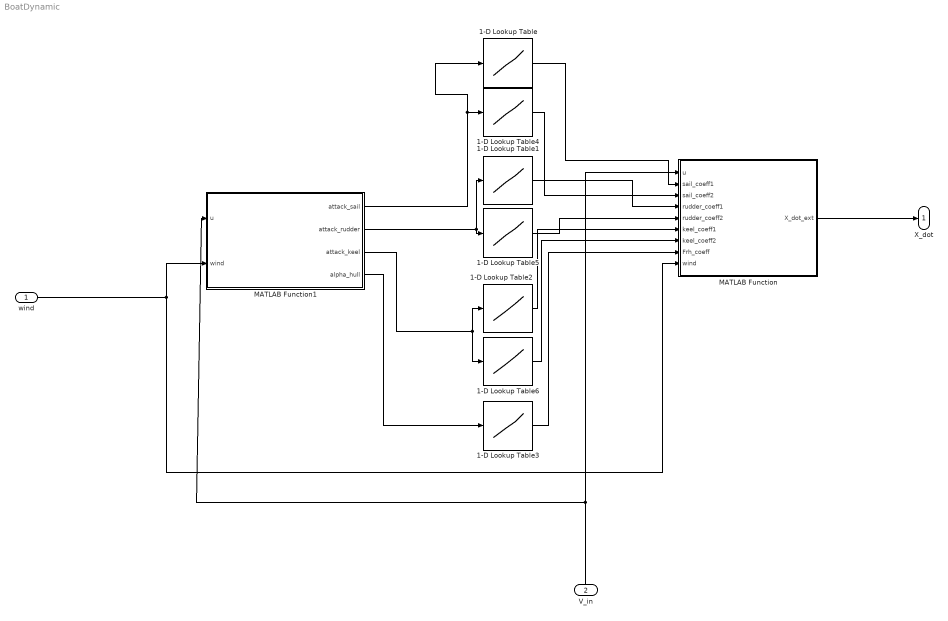
== matlab function BoatDynamic/MATLAB Function1 ==
% interpreted Matlab function "f.m" for the Simulink file "SailingYachtModel.slx"
% This function describes the dynamics of a 4DOF sailing yacht model
% and gives the derivative of the state X and the sail angle delta_s.
% The input vector V_in contains the system state and the control input vector. 
%
% For the model description, notations, equations and parameters,
% see Xiao and Jouffroy, "Modeling and nonlinear heading control of sailing
% yachts", IEEE Journal of Oceanic Engineering, vol. 39, no. 2., pp. 256-268, 2014.
% 
% Jerome Jouffroy, Jiaxi He and Lin Xiao, 2014.
% University of Southern Denmark.



function [attack_sail,attack_rudder,attack_keel,alpha_hull]=sailcoeff_attack(u,wind)
%#codegen

% use the system parameters
par = modeleBoat();

par.vt = wind(1);                           % the norm of wind velocity
par.alpha_w = wind(2);                      % the direction of wind (coming from the north, ie going south)


V_in = u;
% retrieve the system state from the field input vector "V_in"
x = V_in(5);
y = V_in(6);
phi = V_in(7);
psi = V_in(8);
u = V_in(9);
v = V_in(10);
p = V_in(11);
r = V_in(12);
nu = [ u ; v ; p ; r ];

% retrieve the input signals from the vector "V_in"
delta_r = V_in(1);
delta_sbar = V_in(2);
y_w = V_in(3);
u_s = V_in(4);


% evaluate the matrix M and C in the model
M_RB = [ par.m 0 0 0 ; 0 par.m 0 0 ; 0 0 par.Ixx -par.Ixz ; 0 0 -par.Ixz par.Izz];
C_RB = [0 -par.m*r 0 0 ; par.m*r 0 0 0 ; 0 0 0 0 ; 0 0 0 0];

M_A = [par.a11 0 0 0;0 par.a22 par.a24 par.a26;0 par.a24 par.a44 par.a46;0 par.a26 par.a46 par.a66];
C_A = [0  0 0 -par.a22*nu(2)-par.a24*nu(3)-par.a26*nu(4) ; 0 0 0 par.a11*nu(1) ; 0 0 0 0 ; par.a22*nu(2)+par.a24*nu(3)+par.a26*nu(4) -par.a11*nu(1) 0 0];

M = M_RB + M_A;

% calculate the tau vector, ie forces and moments generated from:
% the sail
v_t = [ par.vt*cos(par.alpha_w); par.vt*sin(par.alpha_w); 0 ];
v_tw = log(abs(par.z_s)*cos(phi)/par.h0)/log(par.h1/par.h0)*v_t;
R1 = [ cos(-psi) -sin(-psi) 0; sin(-psi) cos(-psi) 0; 0 0 1];
R2 = [ 1 0 0 ; 0 cos(-phi) -sin(-phi); 0 sin(-phi) cos(-phi)];
v_tb = R2*R1*v_tw; % wind expressed in the body frame
V_in = [ u ; v ; 0 ];
V_awb = v_tb - V_in - cross([p;0;r],[par.xs;par.ys;par.zs]);
V_awu = V_awb(1);
V_awv = V_awb(2);
alpha_aw = atan2(V_awv,-V_awu);

%% (sail luffing or not)
if alpha_aw-u_s>delta_sbar
    delta_s = delta_sbar;
elseif alpha_aw-u_s<-delta_sbar
    delta_s = -delta_sbar;
else
    delta_s = alpha_aw-u_s;
end
delta_s = delta_s + u_s;

alpha_as = alpha_aw - delta_s;

attack_sail = alpha_as;

% fit the input angle of attack into the interval [-pi,pi]
if attack_sail > pi
    attack_sail = mod(attack_sail+pi,2*pi) - pi;
else
    if attack_sail < -pi
        attack_sail = mod(attack_sail-pi,-2*pi) + pi;
    end
end

%% the rudder
v_aru = -u+r*par.yr;
v_arv = -v-r*par.xr + p*par.zr;
alpha_ar = atan2(v_arv,-v_aru);
alpha_a = alpha_ar-delta_r;

attack_rudder = alpha_a;

% fit the input angle of attack into the interval [-pi,pi]
if attack_rudder > pi
    attack_rudder = mod(attack_rudder+pi,2*pi) - pi;
else
    if attack_rudder < -pi
        attack_rudder = mod(attack_rudder-pi,-2*pi) + pi;
    end
end

%% the keel
v_aku = -u + r*par.yk;
v_akv = -v - r*par.xk+p*par.zk;
alpha_ak = atan2(v_akv,-v_aku);
alpha_e = alpha_ak;

attack_keel = alpha_e;

% fit the input angle of attack into the interval [-pi,pi]
if attack_keel > pi
    attack_keel = mod(attack_keel+pi,2*pi) - pi;
else
    if attack_keel < -pi
        attack_keel = mod(attack_keel-pi,-2*pi) + pi;
    end
end

%% from the hull
v_ahu = -u + r*par.yh;
v_ahv = (-v-r*par.xh + p*par.zh)/cos(phi);
v_ah = sqrt(v_aku^2+v_akv^2);
alpha_ah = atan2(v_ahv,-v_ahu);
alpha_hull = v_ah;

== matlab function BoatDynamic/MATLAB Function ==
% interpreted Matlab function "f.m" for the Simulink file "SailingYachtModel.slx"
% This function describes the dynamics of a 4DOF sailing yacht model
% and gives the derivative of the state X and the sail angle delta_s.
% The input vector V_in contains the system state and the control input vector. 
%
% For the model description, notations, equations and parameters,
% see Xiao and Jouffroy, "Modeling and nonlinear heading control of sailing
% yachts", IEEE Journal of Oceanic Engineering, vol. 39, no. 2., pp. 256-268, 2014.
% 
% Jerome Jouffroy, Jiaxi He and Lin Xiao, 2014.
% University of Southern Denmark.



function X_dot_ext  =fcn(u,sail_coeff1,sail_coeff2,rudder_coeff1,rudder_coeff2,keel_coeff1,keel_coeff2,Frh_coeff,wind)
%#codegen

% use the system parameters
par = modeleBoat();

par.vt = wind(1);                           % the norm of wind velocity
par.alpha_w = wind(2);                      % the direction of wind (coming from the north, ie going south)


V_in = u;
% retrieve the system state from the field input vector "V_in"
x = V_in(5);
y = V_in(6);
phi = V_in(7);
psi = V_in(8);
u = V_in(9);
v = V_in(10);
p = V_in(11);
r = V_in(12);
nu = [ u ; v ; p ; r ];

% retrieve the input signals from the vector "V_in"
delta_r = V_in(1);
delta_sbar = V_in(2);
y_w = V_in(3);
u_s = V_in(4);

% evaluate the matrix M and C in the model
M_RB = [ par.m 0 0 0 ; 0 par.m 0 0 ; 0 0 par.Ixx -par.Ixz ; 0 0 -par.Ixz par.Izz];
C_RB = [0 -par.m*r 0 0 ; par.m*r 0 0 0 ; 0 0 0 0 ; 0 0 0 0];

M_A = [par.a11 0 0 0;0 par.a22 par.a24 par.a26;0 par.a24 par.a44 par.a46;0 par.a26 par.a46 par.a66];
C_A = [0  0 0 -par.a22*nu(2)-par.a24*nu(3)-par.a26*nu(4) ; 0 0 0 par.a11*nu(1) ; 0 0 0 0 ; par.a22*nu(2)+par.a24*nu(3)+par.a26*nu(4) -par.a11*nu(1) 0 0];

M = M_RB + M_A;

% calculate the tau vector, ie forces and moments generated from:
% the sail
v_t = [ par.vt*cos(par.alpha_w); par.vt*sin(par.alpha_w); 0 ];
v_tw = log(abs(par.z_s)*cos(phi)/par.h0)/log(par.h1/par.h0)*v_t;
R1 = [ cos(-psi) -sin(-psi) 0; sin(-psi) cos(-psi) 0; 0 0 1];
R2 = [ 1 0 0 ; 0 cos(-phi) -sin(-phi); 0 sin(-phi) cos(-phi)];
v_tb = R2*R1*v_tw; % wind expressed in the body frame
V_in = [ u ; v ; 0 ];
V_awb = v_tb - V_in - cross([p;0;r],[par.xs;par.ys;par.zs]);
V_awu = V_awb(1);
V_awv = V_awb(2);
alpha_aw = atan2(V_awv,-V_awu);

% (sail luffing or not)
if alpha_aw-u_s>delta_sbar
    delta_s = delta_sbar;
elseif alpha_aw-u_s<-delta_sbar
    delta_s = -delta_sbar;
else
    delta_s = alpha_aw-u_s;
end
delta_s = delta_s + u_s;

alpha_as = alpha_aw - delta_s;

Cls = sail_coeff1;
Cds = sail_coeff2;

Ls = 0.5*par.rho_a*par.As*(V_awu^2+V_awv^2)*Cls;
Ds = 0.5*par.rho_a*par.As*(V_awu^2+V_awv^2)*Cds;

tau_sail = [Ls*sin(alpha_aw)-Ds*cos(alpha_aw); Ls*cos(alpha_aw)+Ds*sin(alpha_aw);-(Ls*cos(alpha_aw)+Ds*sin(alpha_aw))*par.zs; -(Ls*sin(alpha_aw)-Ds*cos(alpha_aw))*par.Xce*sin(delta_s)+(Ls*cos(alpha_aw)+Ds*sin(alpha_aw))*(par.Xm-par.Xce*cos(delta_s))];
Mzs = tau_sail(4);

% the rudder
v_aru = -u+r*par.yr;
v_arv = -v-r*par.xr + p*par.zr;
alpha_ar = atan2(v_arv,-v_aru);
alpha_a = alpha_ar-delta_r;

%[Clr,Cdr] = ruddercoef(alpha_a);
Clr = rudder_coeff1;
Cdr = rudder_coeff2;

Cdr = Cdr+Clr^2*par.Ar/(pi*2*par.zeta_r*par.d_r^2);

Lr = 0.5*par.rho_w*par.Ar*(v_aru^2+v_arv^2)*Clr;
Dr = 0.5*par.rho_w*par.Ar*(v_aru^2+v_arv^2)*Cdr;

tau_rudder = [Lr*sin(alpha_ar)-Dr*cos(alpha_ar); Lr*cos(alpha_ar)+Dr*sin(alpha_ar); -(Lr*cos(alpha_ar)+Dr*sin(alpha_ar))*par.zr; (Lr*cos(alpha_ar)+Dr*sin(alpha_ar))*par.xr];
Mzr = tau_rudder(4);

% the tau vector is finally given by:
tau = tau_sail + tau_rudder;

% calculate the damping forces and moments:
% from the keel
v_aku = -u + r*par.yk;
v_akv = -v - r*par.xk+p*par.zk;
alpha_ak = atan2(v_akv,-v_aku);
alpha_e = alpha_ak;

Clk = keel_coeff1;
Cdk = keel_coeff2;

Cdk = Cdk + Clk^2*par.Ak/(pi*2*par.zeta_k*par.d_k^2);

Lk = 0.5*par.rho_w*par.Ak*(v_aku^2+v_akv^2)*Clk;
Dk = 0.5*par.rho_w*par.Ak*(v_aku^2+v_akv^2)*Cdk;

D_keel = [ -Lk*sin(alpha_ak)+Dk*cos(alpha_ak); -Lk*cos(alpha_ak)-Dk*sin(alpha_ak); -(-Lk*cos(alpha_ak)-Dk*sin(alpha_ak))*par.zk; -(Lk*cos(alpha_ak)+Dk*sin(alpha_ak))*par.xk];

% from the hull
v_ahu = -u + r*par.yh;
v_ahv = (-v-r*par.xh + p*par.zh)/cos(phi);
v_ah = sqrt(v_aku^2+v_akv^2);
alpha_ah = atan2(v_ahv,-v_ahu);

Frh = Frh_coeff;

D_hull = [Frh*cos(alpha_ah);-Frh*sin(alpha_ah)*cos(phi); Frh*sin(alpha_ah)*cos(phi)*par.zh; -Frh*sin(alpha_ah)*cos(phi)*par.xh];

% from heel and yaw
% (compute first eta_dot and thereby phi_dot and psi_dot)
J = [cos(psi) -sin(psi)*cos(phi) 0 0; sin(psi) cos(psi)*cos(phi) 0 0; 0 0 1 0; 0 0 0 cos(phi)];
eta_dot = J*nu;
phi_dot = eta_dot(3);
psi_dot = eta_dot(4);

D_heelandyaw = [0;0;par.c*phi_dot*abs(phi_dot);par.d*psi_dot*abs(psi_dot)*cos(phi)]; 

% compute total damping vector D
D = D_keel + D_hull + D_heelandyaw;

% righting moment plus internal moving mass system (ie transversal weight)
phi_deg = phi*180/pi;
M_xw = -y_w*par.w_c*par.y_bm*cos(phi);
M_zw = -y_w*par.w_c*par.x_c*sin(abs(phi));
G = [ 0 ; 0 ; par.a*phi_deg^2+par.b*phi_deg + M_xw ; M_zw];

% computation of nu_dot
nu_dot = -M\(C_RB*nu+C_A*nu)-M\D-M\G+M\tau; 
 

% output the derivative of the state extended with the sail angle
X_dot_ext = [ eta_dot   ; 
              nu_dot   ;
              delta_s];

/*
 * BoatDynamic.c
 *
 * Code generation for model "BoatDynamic".
 *
 * Model version              : 1.5
 * Simulink Coder version : 8.6 (R2014a) 27-Dec-2013
 * C source code generated on : Mon May  4 11:09:21 2015
 *
 * Target selection: grt.tlc
 * Note: GRT includes extra infrastructure and instrumentation for prototyping
 * Embedded hardware selection: Atmel->AVR
 * Code generation objectives: Unspecified
 * Validation result: Not run
 */
#include "BoatDynamic.h"
#include "BoatDynamic_private.h"

/* Block states (auto storage) */
DW_BoatDynamic_T BoatDynamic_DW;

/* External inputs (root inport signals with auto storage) */
ExtU_BoatDynamic_T BoatDynamic_U;

/* External outputs (root outports fed by signals with auto storage) */
ExtY_BoatDynamic_T BoatDynamic_Y;

/* Real-time model */
RT_MODEL_BoatDynamic_T BoatDynamic_M_;
RT_MODEL_BoatDynamic_T *const BoatDynamic_M = &BoatDynamic_M_;

/* Forward declaration for local functions */
static void BoatDynamic_mldivide(const real_T A[16], real_T B[4]);

/* n-D Spline interpolation function */
real_T look_SplNBinXZcd(uint32_T numDims, const real_T* u, const
  rt_LUTSplineWork * const SWork)
{
  /*
   *   n-D column-major table lookup operating on real_T with:
   *       - Spline interpolation
   *       - Linear extrapolation
   *       - Binary breakpoint search
   *       - Index search starts at the same place each time
   */
  rt_LUTnWork * const TWork_look = SWork->m_TWork;
  real_T* const fraction = (real_T*) TWork_look->m_bpLambda;
  uint32_T* const bpIdx = TWork_look->m_bpIndex;
  const uint32_T* const maxIndex = TWork_look->m_maxIndex;
  uint32_T k;
  for (k = 0U; k < numDims; k++) {
    const real_T* const bpData = ((const real_T * const *)
      TWork_look->m_bpDataSet)[k];
    bpIdx[k] = plook_binx(u[k], &bpData[0], maxIndex[k], &fraction[k]);
  }

  return(intrp_NSplcd(numDims, SWork, 2U));
}

/*
 * Second derivative initialization function for spline
 * for last dimension.
 */
void rt_Spline2Derivd(const real_T *x, const real_T *y, uint32_T n, real_T *u,
                      real_T *y2)
{
  real_T p, qn, sig, un;
  uint32_T n1, i, k;
  n1 = n - 1U;
  y2[0U] = 0.0;
  u[0U] = 0.0;
  for (i = 1U; i < n1; i++) {
    real_T dxm1 = x[i] - x[i - 1U];
    real_T dxp1 = x[i + 1U] - x[i];
    real_T dxpm = dxp1 + dxm1;
    sig = dxm1 / dxpm;
    p = (sig * y2[i - 1U]) + 2.0;
    y2[i] = (sig - 1.0) / p;
    u[i] = ((y[i + 1U] - y[i]) / dxp1) - ((y[i] - y[i - 1U]) / dxm1);
    u[i] = (((6.0 * u[i]) / dxpm) - (sig * u[i - 1U])) / p;
  }

  qn = 0.0;
  un = 0.0;
  y2[n1] = (un - (qn * u[n1 - 1U])) / ((qn * y2[n1 - 1U]) + 1.0);
  for (k = n1; k > 0U; k--) {
    y2[k-1U] = (y2[k-1U] * y2[k]) + u[k-1U];
  }

  return;
}

/* n-D natural spline calculation function */
real_T intrp_NSplcd(uint32_T numDims, const rt_LUTSplineWork * const splWork,
                    uint32_T extrapMethod)
{
  uint32_T il;
  uint32_T iu, k, i;
  real_T h, s, p, smsq, pmsq;

  /* intermediate results work areas "this" and "next" */
  const rt_LUTnWork *TWork_interp = (const rt_LUTnWork *)splWork->m_TWork;
  const real_T *fraction = (real_T *) TWork_interp->m_bpLambda;
  const real_T *yp = (real_T *) TWork_interp->m_tableData;
  real_T *yyA = (real_T *) splWork->m_yyA;
  real_T *yyB = (real_T *) splWork->m_yyB;
  real_T *yy2 = (real_T *) splWork->m_yy2;
  real_T *up = (real_T *) splWork->m_up;
  real_T *y2 = (real_T *) splWork->m_y2;
  const real_T **bpDataSet = (const real_T **) TWork_interp->m_bpDataSet;
  const real_T *xp = bpDataSet[0U];
  real_T *yy = yyA;
  uint32_T bufBank = 0U;
  uint32_T len = TWork_interp->m_maxIndex[0U] + 1U;

  /* If table and bps are tunable calculate 1st dim 2nd deriv */
  /* Generate first dimension's second derivatives */
  for (i = 0U; i < splWork->m_numYWorkElts[0U]; i++) {
    rt_Spline2Derivd(xp, yp, len, up, y2);
    yp = &yp[len];
    y2 = &y2[len];
  }

  /* Set pointers back to beginning */
  yp = (const real_T *) TWork_interp->m_tableData;
  y2 = (real_T *) splWork->m_y2;

  /* Generate at-point splines in each dimension */
  for (k = 0U; k < numDims; k++ ) {
    /* this dimension's input setup */
    xp = bpDataSet[k];
    len = TWork_interp->m_maxIndex[k] + 1U;
    il = TWork_interp->m_bpIndex[k];
    iu = il + 1U;
    h = xp[iu] - xp[il];
    p = fraction[k];
    s = 1.0 - p;
    pmsq = p * ((p*p) - 1.0);
    smsq = s * ((s*s) - 1.0);

    /*
     * Calculate spline curves for input in this
     * dimension at each value of the higher
     * other dimensions\' points in the table.
     */
    if ((p > 1.0) && (extrapMethod == 2U) ) {
      real_T slope;
      for (i = 0U; i < splWork->m_numYWorkElts[k]; i++) {
        slope = (yp[iu] - yp[il]) + ((y2[il]*h*h)*(1.0/6.0));
        yy[i] = yp[iu] + (slope * (p-1.0));
        yp = &yp[len];
        y2 = &y2[len];
      }
    } else if ((p < 0.0) && (extrapMethod == 2U) ) {
      real_T slope;
      for (i = 0U; i < splWork->m_numYWorkElts[k]; i++) {
        slope = (yp[iu] - yp[il]) - ((y2[iu]*h*h)*(1.0/6.0));
        yy[i] = yp[il] + (slope * p);
        yp = &yp[len];
        y2 = &y2[len];
      }
    } else {
      for (i = 0U; i < splWork->m_numYWorkElts[k]; i++) {
        yy[i] = yp[il] + p * (yp[iu] - yp[il]) +
          ((smsq * y2[il] + pmsq * y2[iu])*h*h)*(1.0/6.0);
        yp = &yp[len];
        y2 = &y2[len];
      }
    }

    /* set pointers to new result and calculate second derivatives */
    yp = yy;
    y2 = yy2;
    if (splWork->m_numYWorkElts[k+1U] > 0U ) {
      uint32_T nextLen = TWork_interp->m_maxIndex[k+1U] + 1U;
      const real_T *nextXp = bpDataSet[k+1U];
      for (i = 0U; i < splWork->m_numYWorkElts[k+1U]; i++) {
        rt_Spline2Derivd(nextXp, yp, nextLen, up, y2);
        yp = &yp[nextLen];
        y2 = &y2[nextLen];
      }
    }

    /*
     * Set work vectors yp, y2 and yy for next iteration;
     * the yy just calculated becomes the yp in the
     * next iteration, y2 was just calculated for these
     * new points and the yy buffer is swapped to the space
     * for storing the next iteration\'s results.
     */
    yp = yy;
    y2 = yy2;

    /*
     * Swap buffers for next dimension and
     * toggle bufBank for next iteration.
     */
    if (bufBank == 0U) {
      yy = yyA;
      bufBank = 1U;
    } else {
      yy = yyB;
      bufBank = 0U;
    }
  }

  return( yp[0U] );
}

real_T look1_binlxpw(real_T u0, const real_T bp0[], const real_T table[],
                     uint32_T maxIndex)
{
  real_T frac;
  uint32_T iRght;
  uint32_T iLeft;
  uint32_T bpIdx;

  /* Lookup 1-D
     Search method: 'binary'
     Use previous index: 'off'
     Interpolation method: 'Linear'
     Extrapolation method: 'Linear'
     Use last breakpoint for index at or above upper limit: 'off'
     Remove protection against out-of-range input in generated code: 'off'
   */
  /* Prelookup - Index and Fraction
     Index Search method: 'binary'
     Extrapolation method: 'Linear'
     Use previous index: 'off'
     Use last breakpoint for index at or above upper limit: 'off'
     Remove protection against out-of-range input in generated code: 'off'
   */
  if (u0 <= bp0[0UL]) {
    iLeft = 0UL;
    frac = (u0 - bp0[0UL]) / (bp0[1UL] - bp0[0UL]);
  } else if (u0 < bp0[maxIndex]) {
    /* Binary Search */
    bpIdx = maxIndex >> 1UL;
    iLeft = 0UL;
    iRght = maxIndex;
    while (iRght - iLeft > 1UL) {
      if (u0 < bp0[bpIdx]) {
        iRght = bpIdx;
      } else {
        iLeft = bpIdx;
      }

      bpIdx = (iRght + iLeft) >> 1UL;
    }

    frac = (u0 - bp0[iLeft]) / (bp0[iLeft + 1UL] - bp0[iLeft]);
  } else {
    iLeft = maxIndex - 1UL;
    frac = (u0 - bp0[maxIndex - 1UL]) / (bp0[maxIndex] - bp0[maxIndex - 1UL]);
  }

  /* Interpolation 1-D
     Interpolation method: 'Linear'
     Use last breakpoint for index at or above upper limit: 'off'
     Overflow mode: 'portable wrapping'
   */
  return (table[iLeft + 1UL] - table[iLeft]) * frac + table[iLeft];
}

uint32_T plook_binx(real_T u, const real_T bp[], uint32_T maxIndex, real_T
                    *fraction)
{
  uint32_T bpIndex;

  /* Prelookup - Index and Fraction
     Index Search method: 'binary'
     Extrapolation method: 'Linear'
     Use previous index: 'off'
     Use last breakpoint for index at or above upper limit: 'off'
     Remove protection against out-of-range input in generated code: 'off'
   */
  if (u <= bp[0UL]) {
    bpIndex = 0UL;
    *fraction = (u - bp[0UL]) / (bp[1UL] - bp[0UL]);
  } else if (u < bp[maxIndex]) {
    bpIndex = binsearch_u32d(u, bp, maxIndex >> 1UL, maxIndex);
    *fraction = (u - bp[bpIndex]) / (bp[bpIndex + 1UL] - bp[bpIndex]);
  } else {
    bpIndex = maxIndex - 1UL;
    *fraction = (u - bp[maxIndex - 1UL]) / (bp[maxIndex] - bp[maxIndex - 1UL]);
  }

  return bpIndex;
}

uint32_T binsearch_u32d(real_T u, const real_T bp[], uint32_T startIndex,
  uint32_T maxIndex)
{
  uint32_T iRght;
  uint32_T iLeft;
  uint32_T bpIdx;

  /* Binary Search */
  bpIdx = startIndex;
  iLeft = 0UL;
  iRght = maxIndex;
  while (iRght - iLeft > 1UL) {
    if (u < bp[bpIdx]) {
      iRght = bpIdx;
    } else {
      iLeft = bpIdx;
    }

    bpIdx = (iRght + iLeft) >> 1UL;
  }

  return iLeft;
}

real_T rt_atan2d_snf(real_T u0, real_T u1)
{
  real_T y;
  int16_T u0_0;
  int16_T u1_0;
  if (rtIsNaN(u0) || rtIsNaN(u1)) {
    y = (rtNaN);
  } else if (rtIsInf(u0) && rtIsInf(u1)) {
    if (u0 > 0.0) {
      u0_0 = 1;
    } else {
      u0_0 = -1;
    }

    if (u1 > 0.0) {
      u1_0 = 1;
    } else {
      u1_0 = -1;
    }

    y = atan2(u0_0, u1_0);
  } else if (u1 == 0.0) {
    if (u0 > 0.0) {
      y = RT_PI / 2.0;
    } else if (u0 < 0.0) {
      y = -(RT_PI / 2.0);
    } else {
      y = 0.0;
    }
  } else {
    y = atan2(u0, u1);
  }

  return y;
}

real_T rt_roundd_snf(real_T u)
{
  real_T y;
  if (fabs(u) < 4.503599627370496E+15) {
    if (u >= 0.5) {
      y = floor(u + 0.5);
    } else if (u > -0.5) {
      y = u * 0.0;
    } else {
      y = ceil(u - 0.5);
    }
  } else {
    y = u;
  }

  return y;
}

/* Function for MATLAB Function: '<Root>/MATLAB Function' */
static void BoatDynamic_mldivide(const real_T A[16], real_T B[4])
{
  real_T temp;
  real_T b_A[16];
  int8_T ipiv[4];
  int16_T j;
  int16_T c;
  int16_T ix;
  real_T s;
  int16_T jy;
  int16_T c_ix;
  int16_T d;
  int16_T ijA;
  int16_T b_kAcol;
  memcpy(&b_A[0L], &A[0L], sizeof(real_T) << 4U);
  ipiv[0] = 1;
  ipiv[1] = 2;
  ipiv[2] = 3;
  for (j = 0; j < 3; j++) {
    c = j * 5;
    jy = 0;
    ix = c;
    temp = fabs(b_A[c]);
    for (b_kAcol = 2; b_kAcol <= 4 - j; b_kAcol++) {
      ix++;
      s = fabs(b_A[ix]);
      if (s > temp) {
        jy = b_kAcol - 1;
        temp = s;
      }
    }

    if (b_A[c + jy] != 0.0) {
      if (jy != 0) {
        ipiv[j] = (int8_T)((j + jy) + 1);
        b_kAcol = j + jy;
        temp = b_A[j];
        b_A[j] = b_A[b_kAcol];
        b_A[b_kAcol] = temp;
        ix = j + 4;
        b_kAcol += 4;
        temp = b_A[ix];
        b_A[ix] = b_A[b_kAcol];
        b_A[b_kAcol] = temp;
        ix += 4;
        b_kAcol += 4;
        temp = b_A[ix];
        b_A[ix] = b_A[b_kAcol];
        b_A[b_kAcol] = temp;
        ix += 4;
        b_kAcol += 4;
        temp = b_A[ix];
        b_A[ix] = b_A[b_kAcol];
        b_A[b_kAcol] = temp;
      }

      ix = (c - j) + 4;
      for (b_kAcol = c + 1; b_kAcol + 1 <= ix; b_kAcol++) {
        b_A[b_kAcol] /= b_A[c];
      }
    }

    b_kAcol = c;
    jy = c + 4;
    for (ix = 1; ix <= 3 - j; ix++) {
      temp = b_A[jy];
      if (b_A[jy] != 0.0) {
        c_ix = c + 1;
        d = (b_kAcol - j) + 8;
        for (ijA = 5 + b_kAcol; ijA + 1 <= d; ijA++) {
          b_A[ijA] += b_A[c_ix] * -temp;
          c_ix++;
        }
      }

      jy += 4;
      b_kAcol += 4;
    }
  }

  if (ipiv[0] != 1) {
    temp = B[0];
    B[0] = B[ipiv[0] - 1];
    B[ipiv[0] - 1] = temp;
  }

  if (ipiv[1] != 2) {
    temp = B[1];
    B[1] = B[ipiv[1] - 1];
    B[ipiv[1] - 1] = temp;
  }

  if (ipiv[2] != 3) {
    temp = B[2];
    B[2] = B[ipiv[2] - 1];
    B[ipiv[2] - 1] = temp;
  }

  if (B[0] != 0.0) {
    for (jy = 1; jy + 1 < 5; jy++) {
      B[jy] -= B[0] * b_A[jy];
    }
  }

  if (B[1] != 0.0) {
    for (jy = 2; jy + 1 < 5; jy++) {
      B[jy] -= b_A[jy + 4] * B[1];
    }
  }

  if (B[2] != 0.0) {
    for (jy = 3; jy + 1 < 5; jy++) {
      B[jy] -= b_A[jy + 8] * B[2];
    }
  }

  if (B[3] != 0.0) {
    B[3] /= b_A[15];
    for (jy = 0; jy + 1 < 4; jy++) {
      B[jy] -= b_A[jy + 12] * B[3];
    }
  }

  if (B[2] != 0.0) {
    B[2] /= b_A[10];
    for (jy = 0; jy + 1 < 3; jy++) {
      B[jy] -= b_A[jy + 8] * B[2];
    }
  }

  if (B[1] != 0.0) {
    B[1] /= b_A[5];
    for (jy = 0; jy + 1 < 2; jy++) {
      B[jy] -= b_A[jy + 4] * B[1];
    }
  }

  if (B[0] != 0.0) {
    B[0] /= b_A[0];
  }
}

/* Model step function */
void BoatDynamic_step(void)
{
  /* local block i/o variables */
  real_T rtb_DLookupTable;
  real_T rtb_DLookupTable4;
  real_T rtb_DLookupTable1;
  real_T rtb_DLookupTable5;
  real_T rtb_DLookupTable2;
  real_T rtb_DLookupTable6;
  real_T rtb_attack_sail;
  real_T rtb_attack_rudder;
  real_T rtb_attack_keel;
  real_T alpha_aw;
  real_T delta_s;
  real_T alpha_as;
  real_T v_aku;
  real_T v_akv;
  real_T alpha_ak;
  real_T phi;
  real_T nu[4];
  real_T M[16];
  real_T Ls;
  real_T Ds;
  real_T alpha_ar;
  real_T Lr;
  real_T Dr;
  real_T Lk;
  real_T Dk;
  real_T D_hull[4];
  real_T eta_dot[4];
  real_T nu_dot[4];
  real_T e[4];
  real_T rtb_DLookupTable3;
  real_T M_0[16];
  real_T b[9];
  real_T tmp[9];
  real_T b_0[9];
  int16_T i;
  real_T b_1[3];
  int32_T tmp_0[16];
  int32_T tmp_1[16];
  real_T c[9];
  real_T tmp_2[9];
  int16_T i_0;
  real_T tmp_3[16];
  real_T tmp_4[16];
  real_T tmp_5[4];
  real_T tmp_6[4];
  real_T alpha_as_idx_1;

  /* MATLAB Function: '<Root>/MATLAB Function1' incorporates:
   *  Inport: '<Root>/V_in'
   *  Inport: '<Root>/wind'
   */
  /* MATLAB Function 'MATLAB Function1': '<S2>:1' */
  /*  interpreted Matlab function "f.m" for the Simulink file "SailingYachtModel.slx" */
  /*  This function describes the dynamics of a 4DOF sailing yacht model */
  /*  and gives the derivative of the state X and the sail angle delta_s. */
  /*  The input vector V_in contains the system state and the control input vector.  */
  /*  */
  /*  For the model description, notations, equations and parameters, */
  /*  see Xiao and Jouffroy, "Modeling and nonlinear heading control of sailing */
  /*  yachts", IEEE Journal of Oceanic Engineering, vol. 39, no. 2., pp. 256-268, 2014. */
  /*   */
  /*  Jerome Jouffroy, Jiaxi He and Lin Xiao, 2014. */
  /*  University of Southern Denmark. */
  /*  use the system parameters */
  /* '<S2>:1:19' */
  /*  (kg),mass of the vehicle */
  /*  moment of inertia */
  /*  (kg),added mass coef. */
  /*  the norm of wind velocity */
  /*  the direction of wind (coming from the north, ie going south) */
  /*  (kg/m^3), air density */
  /*  (m^2), sail area */
  /*  (m), roughness height */
  /*  (m), reference height */
  /*  (m), (x,y,z) is the CoE */
  /*  (m), distance along the mast to the CoE */
  /*  (m), x-coordinate of the mast  */
  /*  (kg/m^3), water density */
  /*  (m^2), rudder area */
  /*  rudder draft */
  /*  rudder efficiency */
  /*  (m), (x,y,z) is the CoE */
  /*  (m^2), keel area */
  /*  keel draft */
  /*  keel efficiency */
  /*  (m), (x,y,z) is the CoE */
  /*  (N), crew weight 20000 */
  /*  (m), crew position */
  /*  (m), yacht beam */
  /* '<S2>:1:21' */
  /*  the norm of wind velocity */
  /* '<S2>:1:22' */
  /*  the direction of wind (coming from the north, ie going south) */
  /*  retrieve the system state from the field input vector "V_in" */
  /* '<S2>:1:29' */
  /* '<S2>:1:30' */
  /* '<S2>:1:31' */
  /* '<S2>:1:32' */
  /* '<S2>:1:33' */
  /* '<S2>:1:34' */
  /*  retrieve the input signals from the vector "V_in" */
  /* '<S2>:1:38' */
  /* '<S2>:1:39' */
  /* '<S2>:1:41' */
  /*  evaluate the matrix M and C in the model */
  /*  calculate the tau vector, ie forces and moments generated from: */
  /*  the sail */
  /* '<S2>:1:55' */
  /* '<S2>:1:56' */
  alpha_as = log(11.58 * cos(BoatDynamic_U.V_in[6]) / 0.0005) /
    10.050181931686932;

  /* '<S2>:1:57' */
  /* '<S2>:1:58' */
  /* '<S2>:1:59' */
  /*  wind expressed in the body frame */
  /* '<S2>:1:60' */
  /* '<S2>:1:61' */
  b[0] = 1.0;
  b[3] = 0.0;
  b[6] = 0.0;
  b[1] = 0.0;
  b[4] = cos(-BoatDynamic_U.V_in[6]);
  b[7] = -sin(-BoatDynamic_U.V_in[6]);
  b[2] = 0.0;
  b[5] = sin(-BoatDynamic_U.V_in[6]);
  b[8] = cos(-BoatDynamic_U.V_in[6]);
  tmp[0] = cos(-BoatDynamic_U.V_in[7]);
  tmp[3] = -sin(-BoatDynamic_U.V_in[7]);
  tmp[6] = 0.0;
  tmp[1] = sin(-BoatDynamic_U.V_in[7]);
  tmp[4] = cos(-BoatDynamic_U.V_in[7]);
  tmp[7] = 0.0;
  tmp[2] = 0.0;
  tmp[5] = 0.0;
  tmp[8] = 1.0;
  for (i = 0; i < 3; i++) {
    for (i_0 = 0; i_0 < 3; i_0++) {
      b_0[i + 3 * i_0] = 0.0;
      b_0[i + 3 * i_0] += tmp[3 * i_0] * b[i];
      b_0[i + 3 * i_0] += tmp[3 * i_0 + 1] * b[i + 3];
      b_0[i + 3 * i_0] += tmp[3 * i_0 + 2] * b[i + 6];
    }
  }

  v_akv = BoatDynamic_U.wind[0] * cos(BoatDynamic_U.wind[1]) * alpha_as;
  alpha_as_idx_1 = BoatDynamic_U.wind[0] * sin(BoatDynamic_U.wind[1]) * alpha_as;
  v_aku = alpha_as * 0.0;
  for (i = 0; i < 3; i++) {
    b_1[i] = b_0[i + 6] * v_aku + (b_0[i + 3] * alpha_as_idx_1 + b_0[i] * v_akv);
  }

  /* '<S2>:1:62' */
  /* '<S2>:1:63' */
  /* '<S2>:1:64' */
  alpha_aw = rt_atan2d_snf((b_1[1] - BoatDynamic_U.V_in[9]) -
    (BoatDynamic_U.V_in[11] * 0.0 - BoatDynamic_U.V_in[10] * -11.58), -((b_1[0]
    - BoatDynamic_U.V_in[8]) - (-0.0 - BoatDynamic_U.V_in[11] * 0.0)));

  /* % (sail luffing or not) */
  if (alpha_aw - BoatDynamic_U.V_in[3] > BoatDynamic_U.V_in[1]) {
    /* '<S2>:1:67' */
    /* '<S2>:1:68' */
    delta_s = BoatDynamic_U.V_in[1];
  } else if (alpha_aw - BoatDynamic_U.V_in[3] < -BoatDynamic_U.V_in[1]) {
    /* '<S2>:1:69' */
    /* '<S2>:1:70' */
    delta_s = -BoatDynamic_U.V_in[1];
  } else {
    /* '<S2>:1:72' */
    delta_s = alpha_aw - BoatDynamic_U.V_in[3];
  }

  /* '<S2>:1:74' */
  delta_s += BoatDynamic_U.V_in[3];

  /* '<S2>:1:76' */
  alpha_as = alpha_aw - delta_s;

  /* '<S2>:1:78' */
  rtb_attack_sail = alpha_as;

  /*  fit the input angle of attack into the interval [-pi,pi] */
  if (alpha_as > 3.1415926535897931) {
    /* '<S2>:1:81' */
    /* '<S2>:1:82' */
    alpha_as = (alpha_as + 3.1415926535897931) / 6.2831853071795862;
    if (fabs(alpha_as - rt_roundd_snf(alpha_as)) <= 2.2204460492503131E-16 *
        alpha_as) {
      alpha_as = 0.0;
    } else {
      alpha_as = (alpha_as - floor(alpha_as)) * 6.2831853071795862;
    }

    rtb_attack_sail = alpha_as - 3.1415926535897931;
  } else {
    if (alpha_as < -3.1415926535897931) {
      /* '<S2>:1:84' */
      /* '<S2>:1:85' */
      alpha_as = (alpha_as - 3.1415926535897931) / -6.2831853071795862;
      if (fabs(alpha_as - rt_roundd_snf(alpha_as)) <= 2.2204460492503131E-16 *
          alpha_as) {
        alpha_as = 0.0;
      } else {
        alpha_as = (alpha_as - floor(alpha_as)) * -6.2831853071795862;
      }

      rtb_attack_sail = alpha_as + 3.1415926535897931;
    }
  }

  /* % the rudder */
  /* '<S2>:1:90' */
  /* '<S2>:1:91' */
  /* '<S2>:1:92' */
  /* '<S2>:1:93' */
  alpha_as = rt_atan2d_snf((-BoatDynamic_U.V_in[9] - BoatDynamic_U.V_in[11] *
    -8.2) + BoatDynamic_U.V_in[10] * -0.78, -(BoatDynamic_U.V_in[11] * 0.0 +
    -BoatDynamic_U.V_in[8])) - BoatDynamic_U.V_in[0];

  /* '<S2>:1:95' */
  rtb_attack_rudder = alpha_as;

  /*  fit the input angle of attack into the interval [-pi,pi] */
  if (alpha_as > 3.1415926535897931) {
    /* '<S2>:1:98' */
    /* '<S2>:1:99' */
    alpha_as = (alpha_as + 3.1415926535897931) / 6.2831853071795862;
    if (fabs(alpha_as - rt_roundd_snf(alpha_as)) <= 2.2204460492503131E-16 *
        alpha_as) {
      alpha_as = 0.0;
    } else {
      alpha_as = (alpha_as - floor(alpha_as)) * 6.2831853071795862;
    }

    rtb_attack_rudder = alpha_as - 3.1415926535897931;
  } else {
    if (alpha_as < -3.1415926535897931) {
      /* '<S2>:1:101' */
      /* '<S2>:1:102' */
      alpha_as = (alpha_as - 3.1415926535897931) / -6.2831853071795862;
      if (fabs(alpha_as - rt_roundd_snf(alpha_as)) <= 2.2204460492503131E-16 *
          alpha_as) {
        alpha_as = 0.0;
      } else {
        alpha_as = (alpha_as - floor(alpha_as)) * -6.2831853071795862;
      }

      rtb_attack_rudder = alpha_as + 3.1415926535897931;
    }
  }

  /* % the keel */
  /* '<S2>:1:107' */
  v_aku = BoatDynamic_U.V_in[11] * 0.0 + -BoatDynamic_U.V_in[8];

  /* '<S2>:1:108' */
  v_akv = (-BoatDynamic_U.V_in[9] - BoatDynamic_U.V_in[11] * 0.0) +
    BoatDynamic_U.V_in[10] * -0.58;

  /* '<S2>:1:109' */
  alpha_ak = rt_atan2d_snf(v_akv, -v_aku);

  /* '<S2>:1:112' */
  rtb_attack_keel = alpha_ak;

  /*  fit the input angle of attack into the interval [-pi,pi] */
  if (alpha_ak > 3.1415926535897931) {
    /* '<S2>:1:115' */
    /* '<S2>:1:116' */
    alpha_as = (alpha_ak + 3.1415926535897931) / 6.2831853071795862;
    if (fabs(alpha_as - rt_roundd_snf(alpha_as)) <= 2.2204460492503131E-16 *
        alpha_as) {
      alpha_as = 0.0;
    } else {
      alpha_as = (alpha_as - floor(alpha_as)) * 6.2831853071795862;
    }

    rtb_attack_keel = alpha_as - 3.1415926535897931;
  } else {
    if (alpha_ak < -3.1415926535897931) {
      /* '<S2>:1:118' */
      /* '<S2>:1:119' */
      alpha_as = (alpha_ak - 3.1415926535897931) / -6.2831853071795862;
      if (fabs(alpha_as - rt_roundd_snf(alpha_as)) <= 2.2204460492503131E-16 *
          alpha_as) {
        alpha_as = 0.0;
      } else {
        alpha_as = (alpha_as - floor(alpha_as)) * -6.2831853071795862;
      }

      rtb_attack_keel = alpha_as + 3.1415926535897931;
    }
  }

  /* % from the hull */
  /* '<S2>:1:126' */
  /* '<S2>:1:128' */

  /* Lookup_n-D: '<Root>/1-D Lookup Table'
   * About '<Root>/1-D Lookup Table':
   *       Table size:  100
   *    Interpolation:  Spline
   *    Extrapolation:  Linear
   *   Breakpt Search:  Binary
   *    Breakpt Cache:  OFF
   */
  rtb_DLookupTable = look_SplNBinXZcd(1U, &rtb_attack_sail, (rt_LUTSplineWork*)
    &BoatDynamic_DW.SWork[0]);

  /* Lookup_n-D: '<Root>/1-D Lookup Table4'
   * About '<Root>/1-D Lookup Table4':
   *       Table size:  100
   *    Interpolation:  Spline
   *    Extrapolation:  Linear
   *   Breakpt Search:  Binary
   *    Breakpt Cache:  OFF
   */
  rtb_DLookupTable4 = look_SplNBinXZcd(1U, &rtb_attack_sail, (rt_LUTSplineWork*)
    &BoatDynamic_DW.SWork_n[0]);

  /* Lookup_n-D: '<Root>/1-D Lookup Table1'
   * About '<Root>/1-D Lookup Table1':
   *       Table size:  100
   *    Interpolation:  Spline
   *    Extrapolation:  Linear
   *   Breakpt Search:  Binary
   *    Breakpt Cache:  OFF
   */
  rtb_DLookupTable1 = look_SplNBinXZcd(1U, &rtb_attack_rudder, (rt_LUTSplineWork*)
    &BoatDynamic_DW.SWork_j[0]);

  /* Lookup_n-D: '<Root>/1-D Lookup Table5'
   * About '<Root>/1-D Lookup Table5':
   *       Table size:  100
   *    Interpolation:  Spline
   *    Extrapolation:  Linear
   *   Breakpt Search:  Binary
   *    Breakpt Cache:  OFF
   */
  rtb_DLookupTable5 = look_SplNBinXZcd(1U, &rtb_attack_rudder, (rt_LUTSplineWork*)
    &BoatDynamic_DW.SWork_k[0]);

  /* Lookup_n-D: '<Root>/1-D Lookup Table2'
   * About '<Root>/1-D Lookup Table2':
   *       Table size:  100
   *    Interpolation:  Spline
   *    Extrapolation:  Linear
   *   Breakpt Search:  Binary
   *    Breakpt Cache:  OFF
   */
  rtb_DLookupTable2 = look_SplNBinXZcd(1U, &rtb_attack_keel, (rt_LUTSplineWork*)
    &BoatDynamic_DW.SWork_jo[0]);

  /* Lookup_n-D: '<Root>/1-D Lookup Table6'
   * About '<Root>/1-D Lookup Table6':
   *       Table size:  100
   *    Interpolation:  Spline
   *    Extrapolation:  Linear
   *   Breakpt Search:  Binary
   *    Breakpt Cache:  OFF
   */
  rtb_DLookupTable6 = look_SplNBinXZcd(1U, &rtb_attack_keel, (rt_LUTSplineWork*)
    &BoatDynamic_DW.SWork_kl[0]);

  /* Lookup_n-D: '<Root>/1-D Lookup Table3' incorporates:
   *  MATLAB Function: '<Root>/MATLAB Function1'
   */
  rtb_DLookupTable3 = look1_binlxpw(sqrt(v_aku * v_aku + v_akv * v_akv),
    BoatDynamic_P.hull_xdata, BoatDynamic_P.hull_ydata, 99UL);

  /* MATLAB Function: '<Root>/MATLAB Function' incorporates:
   *  Inport: '<Root>/V_in'
   *  Inport: '<Root>/wind'
   */
  /* MATLAB Function 'MATLAB Function': '<S1>:1' */
  /*  interpreted Matlab function "f.m" for the Simulink file "SailingYachtModel.slx" */
  /*  This function describes the dynamics of a 4DOF sailing yacht model */
  /*  and gives the derivative of the state X and the sail angle delta_s. */
  /*  The input vector V_in contains the system state and the control input vector.  */
  /*  */
  /*  For the model description, notations, equations and parameters, */
  /*  see Xiao and Jouffroy, "Modeling and nonlinear heading control of sailing */
  /*  yachts", IEEE Journal of Oceanic Engineering, vol. 39, no. 2., pp. 256-268, 2014. */
  /*   */
  /*  Jerome Jouffroy, Jiaxi He and Lin Xiao, 2014. */
  /*  University of Southern Denmark. */
  /*  use the system parameters */
  /* '<S1>:1:19' */
  /*  (kg),mass of the vehicle */
  /*  moment of inertia */
  /*  (kg),added mass coef. */
  /*  the norm of wind velocity */
  /*  the direction of wind (coming from the north, ie going south) */
  /*  (kg/m^3), air density */
  /*  (m^2), sail area */
  /*  (m), roughness height */
  /*  (m), reference height */
  /*  (m), (x,y,z) is the CoE */
  /*  (m), distance along the mast to the CoE */
  /*  (m), x-coordinate of the mast  */
  /*  (kg/m^3), water density */
  /*  (m^2), rudder area */
  /*  rudder draft */
  /*  rudder efficiency */
  /*  (m), (x,y,z) is the CoE */
  /*  (m^2), keel area */
  /*  keel draft */
  /*  keel efficiency */
  /*  (m), (x,y,z) is the CoE */
  /*  (N), crew weight 20000 */
  /*  (m), crew position */
  /*  (m), yacht beam */
  /* '<S1>:1:21' */
  /*  the norm of wind velocity */
  /* '<S1>:1:22' */
  /*  the direction of wind (coming from the north, ie going south) */
  /*  retrieve the system state from the field input vector "V_in" */
  /* '<S1>:1:29' */
  phi = BoatDynamic_U.V_in[6];

  /* '<S1>:1:30' */
  /* '<S1>:1:31' */
  /* '<S1>:1:32' */
  /* '<S1>:1:33' */
  /* '<S1>:1:34' */
  /* '<S1>:1:35' */
  /*  retrieve the input signals from the vector "V_in" */
  /* '<S1>:1:39' */
  /* '<S1>:1:40' */
  /* '<S1>:1:41' */
  /*  evaluate the matrix M and C in the model */
  /* '<S1>:1:44' */
  /* '<S1>:1:45' */
  /* '<S1>:1:47' */
  /* '<S1>:1:48' */
  /* '<S1>:1:50' */
  tmp_0[0] = 25900L;
  tmp_0[4] = 0L;
  tmp_0[8] = 0L;
  tmp_0[12] = 0L;
  tmp_0[1] = 0L;
  tmp_0[5] = 25900L;
  tmp_0[9] = 0L;
  tmp_0[13] = 0L;
  tmp_0[2] = 0L;
  tmp_0[6] = 0L;
  tmp_0[10] = 133690L;
  tmp_0[14] = -2180L;
  tmp_0[3] = 0L;
  tmp_0[7] = 0L;
  tmp_0[11] = -2180L;
  tmp_0[15] = 24760L;
  tmp_1[0] = 970L;
  tmp_1[4] = 0L;
  tmp_1[8] = 0L;
  tmp_1[12] = 0L;
  tmp_1[1] = 0L;
  tmp_1[5] = 17430L;
  tmp_1[9] = -13160L;
  tmp_1[13] = -6190L;
  tmp_1[2] = 0L;
  tmp_1[6] = -13160L;
  tmp_1[10] = 106500L;
  tmp_1[14] = 4730L;
  tmp_1[3] = 0L;
  tmp_1[7] = -6190L;
  tmp_1[11] = 4730L;
  tmp_1[15] = 101650L;
  for (i = 0; i < 4; i++) {
    M[i << 2] = tmp_0[i << 2] + tmp_1[i << 2];
    M[1 + (i << 2)] = tmp_0[(i << 2) + 1] + tmp_1[(i << 2) + 1];
    M[2 + (i << 2)] = tmp_0[(i << 2) + 2] + tmp_1[(i << 2) + 2];
    M[3 + (i << 2)] = tmp_0[(i << 2) + 3] + tmp_1[(i << 2) + 3];
  }

  /*  calculate the tau vector, ie forces and moments generated from: */
  /*  the sail */
  /* '<S1>:1:54' */
  /* '<S1>:1:55' */
  alpha_as = log(11.58 * cos(BoatDynamic_U.V_in[6]) / 0.0005) /
    10.050181931686932;

  /* '<S1>:1:56' */
  /* '<S1>:1:57' */
  /* '<S1>:1:58' */
  /*  wind expressed in the body frame */
  /* '<S1>:1:59' */
  /* '<S1>:1:60' */
  c[0] = 1.0;
  c[3] = 0.0;
  c[6] = 0.0;
  c[1] = 0.0;
  c[4] = cos(-BoatDynamic_U.V_in[6]);
  c[7] = -sin(-BoatDynamic_U.V_in[6]);
  c[2] = 0.0;
  c[5] = sin(-BoatDynamic_U.V_in[6]);
  c[8] = cos(-BoatDynamic_U.V_in[6]);
  tmp_2[0] = cos(-BoatDynamic_U.V_in[7]);
  tmp_2[3] = -sin(-BoatDynamic_U.V_in[7]);
  tmp_2[6] = 0.0;
  tmp_2[1] = sin(-BoatDynamic_U.V_in[7]);
  tmp_2[4] = cos(-BoatDynamic_U.V_in[7]);
  tmp_2[7] = 0.0;
  tmp_2[2] = 0.0;
  tmp_2[5] = 0.0;
  tmp_2[8] = 1.0;
  for (i = 0; i < 3; i++) {
    for (i_0 = 0; i_0 < 3; i_0++) {
      b[i + 3 * i_0] = 0.0;
      b[i + 3 * i_0] += tmp_2[3 * i_0] * c[i];
      b[i + 3 * i_0] += tmp_2[3 * i_0 + 1] * c[i + 3];
      b[i + 3 * i_0] += tmp_2[3 * i_0 + 2] * c[i + 6];
    }
  }

  v_akv = BoatDynamic_U.wind[0] * cos(BoatDynamic_U.wind[1]) * alpha_as;
  alpha_as_idx_1 = BoatDynamic_U.wind[0] * sin(BoatDynamic_U.wind[1]) * alpha_as;
  v_aku = alpha_as * 0.0;
  for (i = 0; i < 3; i++) {
    b_1[i] = b[i + 6] * v_aku + (b[i + 3] * alpha_as_idx_1 + b[i] * v_akv);
  }

  v_aku = (b_1[0] - BoatDynamic_U.V_in[8]) - (-0.0 - BoatDynamic_U.V_in[11] *
    0.0);
  v_akv = (b_1[1] - BoatDynamic_U.V_in[9]) - (BoatDynamic_U.V_in[11] * 0.0 -
    BoatDynamic_U.V_in[10] * -11.58);

  /* '<S1>:1:61' */
  /* '<S1>:1:62' */
  /* '<S1>:1:63' */
  alpha_aw = rt_atan2d_snf(v_akv, -v_aku);

  /*  (sail luffing or not) */
  if (alpha_aw - BoatDynamic_U.V_in[3] > BoatDynamic_U.V_in[1]) {
    /* '<S1>:1:66' */
    /* '<S1>:1:67' */
    delta_s = BoatDynamic_U.V_in[1];
  } else if (alpha_aw - BoatDynamic_U.V_in[3] < -BoatDynamic_U.V_in[1]) {
    /* '<S1>:1:68' */
    /* '<S1>:1:69' */
    delta_s = -BoatDynamic_U.V_in[1];
  } else {
    /* '<S1>:1:71' */
    delta_s = alpha_aw - BoatDynamic_U.V_in[3];
  }

  /* '<S1>:1:73' */
  delta_s += BoatDynamic_U.V_in[3];

  /* '<S1>:1:80' */
  Ls = (v_aku * v_aku + v_akv * v_akv) * 102.0 * rtb_DLookupTable;

  /* '<S1>:1:81' */
  Ds = (v_aku * v_aku + v_akv * v_akv) * 102.0 * rtb_DLookupTable4;

  /* '<S1>:1:83' */
  /*  the rudder */
  /* '<S1>:1:87' */
  alpha_as = BoatDynamic_U.V_in[11] * 0.0 + -BoatDynamic_U.V_in[8];

  /* '<S1>:1:88' */
  v_aku = (-BoatDynamic_U.V_in[9] - BoatDynamic_U.V_in[11] * -8.2) +
    BoatDynamic_U.V_in[10] * -0.78;

  /* '<S1>:1:89' */
  alpha_ar = rt_atan2d_snf(v_aku, -alpha_as);

  /* [Clr,Cdr] = ruddercoef(alpha_a); */
  /* '<S1>:1:96' */
  /* '<S1>:1:98' */
  Lr = (alpha_as * alpha_as + v_aku * v_aku) * 599.625 * rtb_DLookupTable1;

  /* '<S1>:1:99' */
  Dr = (rtb_DLookupTable1 * rtb_DLookupTable1 * 1.17 / 18.145839167134646 +
        rtb_DLookupTable5) * ((alpha_as * alpha_as + v_aku * v_aku) * 599.625);

  /* '<S1>:1:101' */
  /*  the tau vector is finally given by: */
  /* '<S1>:1:105' */
  /*  calculate the damping forces and moments: */
  /*  from the keel */
  /* '<S1>:1:109' */
  v_aku = BoatDynamic_U.V_in[11] * 0.0 + -BoatDynamic_U.V_in[8];

  /* '<S1>:1:110' */
  v_akv = (-BoatDynamic_U.V_in[9] - BoatDynamic_U.V_in[11] * 0.0) +
    BoatDynamic_U.V_in[10] * -0.58;

  /* '<S1>:1:111' */
  alpha_ak = rt_atan2d_snf(v_akv, -v_aku);

  /* '<S1>:1:117' */
  /* '<S1>:1:119' */
  Lk = (v_aku * v_aku + v_akv * v_akv) * 4458.75 * rtb_DLookupTable2;

  /* '<S1>:1:120' */
  Dk = (rtb_DLookupTable2 * rtb_DLookupTable2 * 8.7 / 27.269464056130911 +
        rtb_DLookupTable6) * ((v_aku * v_aku + v_akv * v_akv) * 4458.75);

  /* '<S1>:1:122' */
  /*  from the hull */
  /* '<S1>:1:125' */
  /* '<S1>:1:126' */
  /* '<S1>:1:128' */
  alpha_as = rt_atan2d_snf(((-BoatDynamic_U.V_in[9] - BoatDynamic_U.V_in[11] *
    0.0) + BoatDynamic_U.V_in[10] * -1.18) / cos(BoatDynamic_U.V_in[6]),
    -(BoatDynamic_U.V_in[11] * 0.0 + -BoatDynamic_U.V_in[8]));

  /* '<S1>:1:132' */
  D_hull[0] = rtb_DLookupTable3 * cos(alpha_as);
  D_hull[1] = -rtb_DLookupTable3 * sin(alpha_as) * cos(BoatDynamic_U.V_in[6]);
  D_hull[2] = rtb_DLookupTable3 * sin(alpha_as) * cos(BoatDynamic_U.V_in[6]) *
    -1.18;
  D_hull[3] = -rtb_DLookupTable3 * sin(alpha_as) * cos(BoatDynamic_U.V_in[6]) *
    0.0;

  /*  from heel and yaw */
  /*  (compute first eta_dot and thereby phi_dot and psi_dot) */
  /* '<S1>:1:136' */
  /* '<S1>:1:137' */
  M_0[0] = cos(BoatDynamic_U.V_in[7]);
  M_0[4] = -sin(BoatDynamic_U.V_in[7]) * cos(BoatDynamic_U.V_in[6]);
  M_0[8] = 0.0;
  M_0[12] = 0.0;
  M_0[1] = sin(BoatDynamic_U.V_in[7]);
  M_0[5] = cos(BoatDynamic_U.V_in[7]) * cos(BoatDynamic_U.V_in[6]);
  M_0[9] = 0.0;
  M_0[13] = 0.0;
  M_0[2] = 0.0;
  M_0[6] = 0.0;
  M_0[10] = 1.0;
  M_0[14] = 0.0;
  M_0[3] = 0.0;
  M_0[7] = 0.0;
  M_0[11] = 0.0;
  M_0[15] = cos(BoatDynamic_U.V_in[6]);
  for (i = 0; i < 4; i++) {
    alpha_as_idx_1 = M_0[i + 12] * BoatDynamic_U.V_in[11] + (M_0[i + 8] *
      BoatDynamic_U.V_in[10] + (M_0[i + 4] * BoatDynamic_U.V_in[9] + M_0[i] *
      BoatDynamic_U.V_in[8]));
    eta_dot[i] = alpha_as_idx_1;
  }

  /* '<S1>:1:138' */
  /* '<S1>:1:139' */
  /* '<S1>:1:141' */
  /*  compute total damping vector D */
  /* '<S1>:1:144' */
  /*  righting moment plus internal moving mass system (ie transversal weight) */
  /* '<S1>:1:147' */
  alpha_as = BoatDynamic_U.V_in[6] * 180.0 / 3.1415926535897931;

  /* '<S1>:1:148' */
  v_aku = -BoatDynamic_U.V_in[2] * 60000.0 * 3.6 * cos(BoatDynamic_U.V_in[6]);

  /* '<S1>:1:149' */
  v_akv = -BoatDynamic_U.V_in[2] * 60000.0 * -8.0 * sin(fabs(BoatDynamic_U.V_in
    [6]));

  /* '<S1>:1:150' */
  /*  computation of nu_dot */
  /* '<S1>:1:153' */
  tmp_3[0] = 0.0;
  tmp_3[4] = -25900.0 * BoatDynamic_U.V_in[11];
  tmp_3[8] = 0.0;
  tmp_3[12] = 0.0;
  tmp_3[1] = 25900.0 * BoatDynamic_U.V_in[11];
  tmp_3[5] = 0.0;
  tmp_3[9] = 0.0;
  tmp_3[13] = 0.0;
  tmp_3[2] = 0.0;
  tmp_3[6] = 0.0;
  tmp_3[10] = 0.0;
  tmp_3[14] = 0.0;
  tmp_3[3] = 0.0;
  tmp_3[7] = 0.0;
  tmp_3[11] = 0.0;
  tmp_3[15] = 0.0;
  tmp_4[0] = 0.0;
  tmp_4[4] = 0.0;
  tmp_4[8] = 0.0;
  tmp_4[12] = (-17430.0 * BoatDynamic_U.V_in[9] - -13160.0 * BoatDynamic_U.V_in
               [10]) - -6190.0 * BoatDynamic_U.V_in[11];
  tmp_4[1] = 0.0;
  tmp_4[5] = 0.0;
  tmp_4[9] = 0.0;
  tmp_4[13] = 970.0 * BoatDynamic_U.V_in[8];
  tmp_4[2] = 0.0;
  tmp_4[6] = 0.0;
  tmp_4[10] = 0.0;
  tmp_4[14] = 0.0;
  tmp_4[3] = (17430.0 * BoatDynamic_U.V_in[9] + -13160.0 * BoatDynamic_U.V_in[10])
    + -6190.0 * BoatDynamic_U.V_in[11];
  tmp_4[7] = -970.0 * BoatDynamic_U.V_in[8];
  tmp_4[11] = 0.0;
  tmp_4[15] = 0.0;
  for (i = 0; i < 4; i++) {
    alpha_as_idx_1 = tmp_3[i + 12] * BoatDynamic_U.V_in[11] + (tmp_3[i + 8] *
      BoatDynamic_U.V_in[10] + (tmp_3[i + 4] * BoatDynamic_U.V_in[9] + tmp_3[i] *
      BoatDynamic_U.V_in[8]));
    tmp_5[i] = alpha_as_idx_1;
  }

  for (i = 0; i < 4; i++) {
    alpha_as_idx_1 = tmp_4[i + 12] * BoatDynamic_U.V_in[11] + (tmp_4[i + 8] *
      BoatDynamic_U.V_in[10] + (tmp_4[i + 4] * BoatDynamic_U.V_in[9] + tmp_4[i] *
      BoatDynamic_U.V_in[8]));
    tmp_6[i] = alpha_as_idx_1;
  }

  nu_dot[0] = tmp_5[0] + tmp_6[0];
  nu_dot[1] = tmp_5[1] + tmp_6[1];
  nu_dot[2] = tmp_5[2] + tmp_6[2];
  nu_dot[3] = tmp_5[3] + tmp_6[3];
  for (i = 0; i < 16; i++) {
    M_0[i] = -M[i];
  }

  BoatDynamic_mldivide(M_0, nu_dot);
  e[0] = (-Lk * sin(alpha_ak) + Dk * cos(alpha_ak)) + D_hull[0];
  e[1] = (-Lk * cos(alpha_ak) - Dk * sin(alpha_ak)) + D_hull[1];
  e[2] = (-(-Lk * cos(alpha_ak) - Dk * sin(alpha_ak)) * -0.58 + D_hull[2]) +
    120000.0 * eta_dot[2] * fabs(eta_dot[2]);
  e[3] = (-(Lk * cos(alpha_ak) + Dk * sin(alpha_ak)) * 0.0 + D_hull[3]) +
    50000.0 * eta_dot[3] * fabs(eta_dot[3]) * cos(phi);
  BoatDynamic_mldivide(M, e);
  nu[0] = 0.0;
  nu[1] = 0.0;
  nu[2] = (alpha_as * alpha_as * -5.89 + 8160.0 * alpha_as) + v_aku;
  nu[3] = v_akv;
  BoatDynamic_mldivide(M, nu);
  D_hull[0] = (Ls * sin(alpha_aw) - Ds * cos(alpha_aw)) + (Lr * sin(alpha_ar) -
    Dr * cos(alpha_ar));
  D_hull[1] = (Ls * cos(alpha_aw) + Ds * sin(alpha_aw)) + (Lr * cos(alpha_ar) +
    Dr * sin(alpha_ar));
  D_hull[2] = -(Ls * cos(alpha_aw) + Ds * sin(alpha_aw)) * -11.58 + -(Lr * cos
    (alpha_ar) + Dr * sin(alpha_ar)) * -0.78;
  D_hull[3] = (-(Ls * sin(alpha_aw) - Ds * cos(alpha_aw)) * 0.6 * sin(delta_s) +
               (Ls * cos(alpha_aw) + Ds * sin(alpha_aw)) * (0.3 - 0.6 * cos
    (delta_s))) + (Lr * cos(alpha_ar) + Dr * sin(alpha_ar)) * -8.2;
  BoatDynamic_mldivide(M, D_hull);
  nu_dot[0] = ((nu_dot[0] - e[0]) - nu[0]) + D_hull[0];
  nu_dot[1] = ((nu_dot[1] - e[1]) - nu[1]) + D_hull[1];
  nu_dot[2] = ((nu_dot[2] - e[2]) - nu[2]) + D_hull[2];

  /* Outport: '<Root>/X_dot' incorporates:
   *  MATLAB Function: '<Root>/MATLAB Function'
   */
  /*  output the derivative of the state extended with the sail angle */
  /* '<S1>:1:157' */
  BoatDynamic_Y.X_dot[0] = eta_dot[0];
  BoatDynamic_Y.X_dot[1] = eta_dot[1];
  BoatDynamic_Y.X_dot[2] = eta_dot[2];
  BoatDynamic_Y.X_dot[3] = eta_dot[3];
  BoatDynamic_Y.X_dot[4] = nu_dot[0];
  BoatDynamic_Y.X_dot[5] = nu_dot[1];
  BoatDynamic_Y.X_dot[6] = nu_dot[2];
  BoatDynamic_Y.X_dot[7] = ((nu_dot[3] - e[3]) - nu[3]) + D_hull[3];
  BoatDynamic_Y.X_dot[8] = delta_s;

  /* Matfile logging */
  rt_UpdateTXYLogVars(BoatDynamic_M->rtwLogInfo,
                      (&BoatDynamic_M->Timing.taskTime0));

  /* signal main to stop simulation */
  {                                    /* Sample time: [0.1s, 0.0s] */
    if ((rtmGetTFinal(BoatDynamic_M)!=-1) &&
        !((rtmGetTFinal(BoatDynamic_M)-BoatDynamic_M->Timing.taskTime0) >
          BoatDynamic_M->Timing.taskTime0 * (DBL_EPSILON))) {
      rtmSetErrorStatus(BoatDynamic_M, "Simulation finished");
    }
  }

  /* Update absolute time for base rate */
  /* The "clockTick0" counts the number of times the code of this task has
   * been executed. The absolute time is the multiplication of "clockTick0"
   * and "Timing.stepSize0". Size of "clockTick0" ensures timer will not
   * overflow during the application lifespan selected.
   * Timer of this task consists of two 32 bit unsigned integers.
   * The two integers represent the low bits Timing.clockTick0 and the high bits
   * Timing.clockTickH0. When the low bit overflows to 0, the high bits increment.
   */
  if (!(++BoatDynamic_M->Timing.clockTick0)) {
    ++BoatDynamic_M->Timing.clockTickH0;
  }

  BoatDynamic_M->Timing.taskTime0 = BoatDynamic_M->Timing.clockTick0 *
    BoatDynamic_M->Timing.stepSize0 + BoatDynamic_M->Timing.clockTickH0 *
    BoatDynamic_M->Timing.stepSize0 * 4294967296.0;
}
